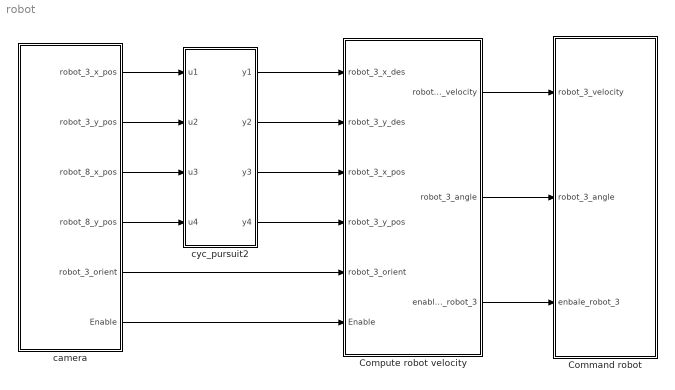
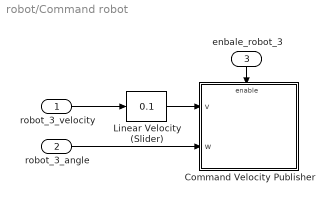
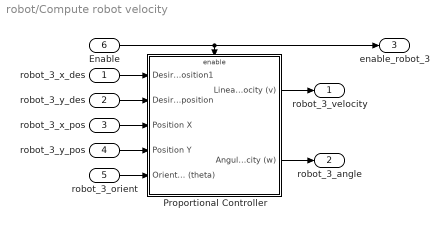
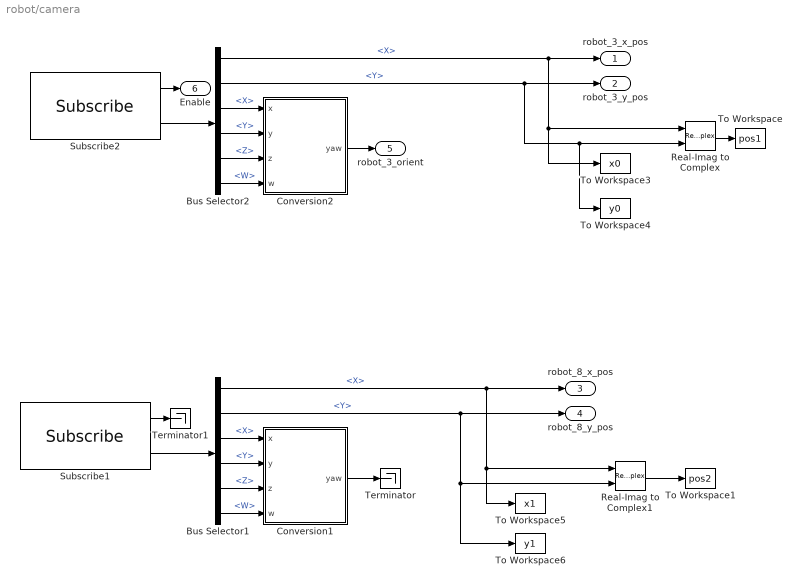
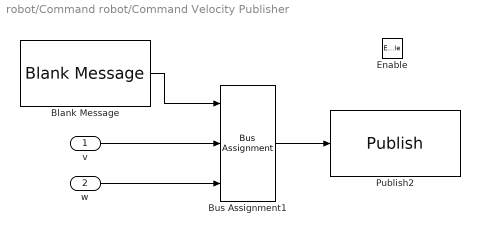
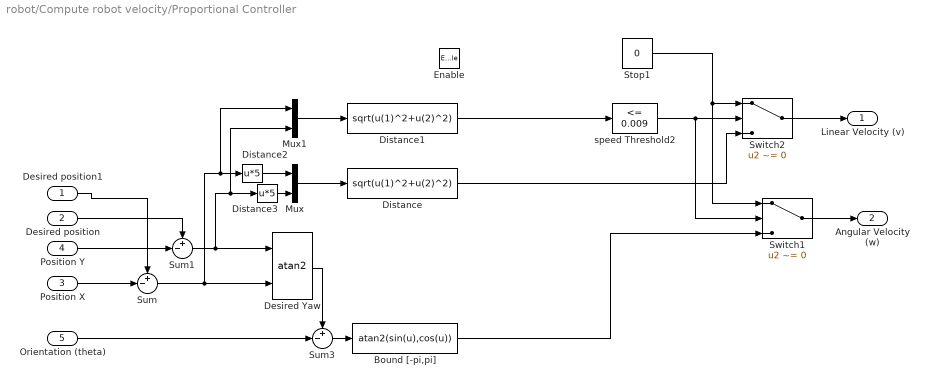
== matlab function robot/cyc_pursuit2 ==
function [y1, y2, y3, y4] = fcn(u1, u2, u3, u4)
%#codegen

y1 = ((1-0.2)*u1+(u3*0.2)+(1.5*0.2));
y2 = ((1-0.2)*u2+(0.2*u4)-(0*0.2));
y3=u1;
y4=u2;

== matlab function robot/camera/Conversion1 ==
function yaw  = quat2eul(x,y,z,w)
%#codegen

% Convert the quaternion to a yaw angle (zyx euler angle)
eul = quat2eul([w,x,y,z]);
yaw = eul(1);

end

== matlab function robot/camera/Conversion2 ==
function yaw  = quat2eul(x,y,z,w)
%#codegen

% Convert the quaternion to a yaw angle (zyx euler angle)
eul = quat2eul([w,x,y,z]);
yaw = eul(1);

end

//
// Academic License - for use in teaching, academic research, and meeting
// course requirements at degree granting institutions only.  Not for
// government, commercial, or other organizational use.
//
// File: robot.cpp
//
// Code generated for Simulink model 'robot'.
//
// Model version                  : 1.18
// Simulink Coder version         : 8.11 (R2016b) 25-Aug-2016
// C/C++ source code generated on : Wed Jan 25 17:09:00 2017
//
// Target selection: ert.tlc
// Embedded hardware selection: Generic->Unspecified (assume 32-bit Generic)
// Code generation objectives: Unspecified
// Validation result: Not run
//
#include "robot.h"
#include "robot_private.h"
#define robot_MessageQueueLen          (105)
#define robot_MessageQueueLen_h        (1)

real_T rt_atan2d_snf(real_T u0, real_T u1)
{
  real_T y;
  int32_T u0_0;
  int32_T u1_0;
  if (rtIsNaN(u0) || rtIsNaN(u1)) {
    y = (rtNaN);
  } else if (rtIsInf(u0) && rtIsInf(u1)) {
    if (u0 > 0.0) {
      u0_0 = 1;
    } else {
      u0_0 = -1;
    }

    if (u1 > 0.0) {
      u1_0 = 1;
    } else {
      u1_0 = -1;
    }

    y = atan2((real_T)u0_0, (real_T)u1_0);
  } else if (u1 == 0.0) {
    if (u0 > 0.0) {
      y = RT_PI / 2.0;
    } else if (u0 < 0.0) {
      y = -(RT_PI / 2.0);
    } else {
      y = 0.0;
    }
  } else {
    y = atan2(u0, u1);
  }

  return y;
}

//
// Output and update for atomic system:
//    '<S3>/Conversion1'
//    '<S3>/Conversion2'
//
void robot_Conversion1(real_T rtu_x, real_T rtu_y, real_T rtu_z, real_T rtu_w,
  B_Conversion1_robot_T *localB)
{
  real_T b_y;
  real_T q_idx_0;
  real_T q_idx_1;
  real_T q_idx_2;

  //  Convert the quaternion to a yaw angle (zyx euler angle)
  // MATLAB Function 'camera/Conversion1': '<S11>:1'
  // '<S11>:1:5' eul = quat2eul([w,x,y,z]);
  b_y = 1.0 / sqrt(((rtu_w * rtu_w + rtu_x * rtu_x) + rtu_y * rtu_y) + rtu_z *
                   rtu_z);
  q_idx_0 = rtu_w * b_y;
  q_idx_1 = rtu_x * b_y;
  q_idx_2 = rtu_y * b_y;
  b_y *= rtu_z;

  // '<S11>:1:6' yaw = eul(1);
  localB->yaw = rt_atan2d_snf((q_idx_1 * q_idx_2 + q_idx_0 * b_y) * 2.0,
    ((q_idx_0 * q_idx_0 + q_idx_1 * q_idx_1) - q_idx_2 * q_idx_2) - b_y * b_y);
}

real_T rt_powd_snf(real_T u0, real_T u1)
{
  real_T y;
  real_T tmp;
  real_T tmp_0;
  if (rtIsNaN(u0) || rtIsNaN(u1)) {
    y = (rtNaN);
  } else {
    tmp = fabs(u0);
    tmp_0 = fabs(u1);
    if (rtIsInf(u1)) {
      if (tmp == 1.0) {
        y = (rtNaN);
      } else if (tmp > 1.0) {
        if (u1 > 0.0) {
          y = (rtInf);
        } else {
          y = 0.0;
        }
      } else if (u1 > 0.0) {
        y = 0.0;
      } else {
        y = (rtInf);
      }
    } else if (tmp_0 == 0.0) {
      y = 1.0;
    } else if (tmp_0 == 1.0) {
      if (u1 > 0.0) {
        y = u0;
      } else {
        y = 1.0 / u0;
      }
    } else if (u1 == 2.0) {
      y = u0 * u0;
    } else if ((u1 == 0.5) && (u0 >= 0.0)) {
      y = sqrt(u0);
    } else if ((u0 < 0.0) && (u1 > floor(u1))) {
      y = (rtNaN);
    } else {
      y = pow(u0, u1);
    }
  }

  return y;
}

// Model step function
void robot_0ModelClass::step()
{
  boolean_T varargout_1;
  boolean_T varargout_1_0;

  // Outputs for Atomic SubSystem: '<S3>/Subscribe2'
  // Start for MATLABSystem: '<S14>/SourceBlock' incorporates:
  //   Inport: '<S16>/In1'
  //   MATLABSystem: '<S14>/SourceBlock'

  varargout_1 = Sub_robot_11.getLatestMessage(&robot_B.varargout_2);

  // Outputs for Enabled SubSystem: '<S14>/Enabled Subsystem' incorporates:
  //   EnablePort: '<S16>/Enable'

  if (varargout_1) {
    robot_B.In1 = robot_B.varargout_2;
  }

  // End of Outputs for SubSystem: '<S14>/Enabled Subsystem'
  // End of Outputs for SubSystem: '<S3>/Subscribe2'

  // Outputs for Atomic SubSystem: '<S3>/Subscribe1'
  // Start for MATLABSystem: '<S13>/SourceBlock' incorporates:
  //   Inport: '<S15>/In1'
  //   MATLABSystem: '<S13>/SourceBlock'

  varargout_1_0 = Sub_robot_10.getLatestMessage(&robot_B.varargout_2);

  // Outputs for Enabled SubSystem: '<S13>/Enabled Subsystem' incorporates:
  //   EnablePort: '<S15>/Enable'

  if (varargout_1_0) {
    robot_B.In1_d = robot_B.varargout_2;
  }

  // End of Start for MATLABSystem: '<S13>/SourceBlock'
  // End of Outputs for SubSystem: '<S13>/Enabled Subsystem'
  // End of Outputs for SubSystem: '<S3>/Subscribe1'

  // MATLAB Function: '<S3>/Conversion2'
  // MATLAB Function 'cyc_pursuit2': '<S4>:1'
  // '<S4>:1:4' y1 = ((1-0.2)*u1+(u3*0.2)+(1.5*0.2));
  // '<S4>:1:5' y2 = ((1-0.2)*u2+(0.2*u4)-(0*0.2));
  // '<S4>:1:6' y3=u1;
  // '<S4>:1:7' y4=u2;
  robot_Conversion1(robot_B.In1.Pose.Pose.Orientation.X,
                    robot_B.In1.Pose.Pose.Orientation.Y,
                    robot_B.In1.Pose.Pose.Orientation.Z,
                    robot_B.In1.Pose.Pose.Orientation.W, &robot_B.sf_Conversion2);

  // Outputs for Enabled SubSystem: '<S1>/Command Velocity Publisher' incorporates:
  //   EnablePort: '<S5>/Enable'

  // Outputs for Enabled SubSystem: '<S2>/Proportional Controller' incorporates:
  //   EnablePort: '<S9>/Enable'

  // Outputs for Atomic SubSystem: '<S3>/Subscribe2'
  // Start for MATLABSystem: '<S14>/SourceBlock' incorporates:
  //   MATLABSystem: '<S14>/SourceBlock'

  if (varargout_1) {
    // Sum: '<S9>/Sum1' incorporates:
    //   MATLAB Function: '<Root>/cyc_pursuit2'
    //   SignalConversion: '<S3>/SigConversion_InsertedFor_Bus Selector1_at_outport_1'
    //   SignalConversion: '<S3>/SigConversion_InsertedFor_Bus Selector2_at_outport_1'

    robot_B.Sum1 = (0.8 * robot_B.In1.Pose.Pose.Position.Y + 0.2 *
                    robot_B.In1_d.Pose.Pose.Position.Y) -
      robot_B.In1.Pose.Pose.Position.Y;

    // Sum: '<S9>/Sum' incorporates:
    //   MATLAB Function: '<Root>/cyc_pursuit2'
    //   SignalConversion: '<S3>/SigConversion_InsertedFor_Bus Selector1_at_outport_0'
    //   SignalConversion: '<S3>/SigConversion_InsertedFor_Bus Selector2_at_outport_0'

    robot_B.Sum = ((0.8 * robot_B.In1.Pose.Pose.Position.X +
                    robot_B.In1_d.Pose.Pose.Position.X * 0.2) +
                   0.30000000000000004) - robot_B.In1.Pose.Pose.Position.X;

    // Fcn: '<S9>/Distance1'
    robot_B.Sum3 = rt_powd_snf(robot_B.Sum, 2.0) + rt_powd_snf(robot_B.Sum1, 2.0);
    if (robot_B.Sum3 < 0.0) {
      robot_B.Sum3 = -sqrt(-robot_B.Sum3);
    } else {
      robot_B.Sum3 = sqrt(robot_B.Sum3);
    }

    // End of Fcn: '<S9>/Distance1'

    // Switch: '<S9>/Switch1' incorporates:
    //   Constant: '<S10>/Constant'
    //   Constant: '<S9>/Stop1'
    //   Fcn: '<S9>/Bound [-pi,pi]'
    //   RelationalOperator: '<S10>/Compare'
    //   Switch: '<S9>/Switch2'

    if (robot_B.Sum3 <= robot_P.speedThreshold2_const) {
      robot_B.Switch1 = robot_P.Stop1_Value;
      robot_B.Sum1 = robot_P.Stop1_Value;
    } else {
      // Sum: '<S9>/Sum3' incorporates:
      //   Trigonometry: '<S9>/Desired Yaw'

      robot_B.Sum3 = rt_atan2d_snf(robot_B.Sum1, robot_B.Sum) -
        robot_B.sf_Conversion2.yaw;
      robot_B.Switch1 = rt_atan2d_snf(sin(robot_B.Sum3), cos(robot_B.Sum3));

      // Fcn: '<S9>/Distance3' incorporates:
      //   Fcn: '<S9>/Bound [-pi,pi]'

      robot_B.Sum1 *= 5.0;

      // Fcn: '<S9>/Distance2'
      robot_B.Sum *= 5.0;

      // Fcn: '<S9>/Distance'
      robot_B.Sum3 = rt_powd_snf(robot_B.Sum, 2.0) + rt_powd_snf(robot_B.Sum1,
        2.0);
      if (robot_B.Sum3 < 0.0) {
        robot_B.Sum1 = -sqrt(-robot_B.Sum3);
      } else {
        robot_B.Sum1 = sqrt(robot_B.Sum3);
      }

      // End of Fcn: '<S9>/Distance'
    }

    // End of Switch: '<S9>/Switch1'

    // BusAssignment: '<S5>/Bus Assignment1' incorporates:
    //   Constant: '<S7>/Constant'
    //   Gain: '<S6>/Slider Gain'

    robot_B.BusAssignment1 = robot_P.Constant_Value_p;
    robot_B.BusAssignment1.Linear.X = robot_P.LinearVelocitySlider_gain *
      robot_B.Sum1;
    robot_B.BusAssignment1.Angular.Z = robot_B.Switch1;

    // Outputs for Atomic SubSystem: '<S5>/Publish2'
    // Start for MATLABSystem: '<S8>/SinkBlock' incorporates:
    //   MATLABSystem: '<S8>/SinkBlock'

    Pub_robot_75.publish(&robot_B.BusAssignment1);

    // End of Outputs for SubSystem: '<S5>/Publish2'
  }

  // End of Outputs for SubSystem: '<S3>/Subscribe2'
  // End of Outputs for SubSystem: '<S2>/Proportional Controller'
  // End of Outputs for SubSystem: '<S1>/Command Velocity Publisher'

  // MATLAB Function: '<S3>/Conversion1'
  robot_Conversion1(robot_B.In1_d.Pose.Pose.Orientation.X,
                    robot_B.In1_d.Pose.Pose.Orientation.Y,
                    robot_B.In1_d.Pose.Pose.Orientation.Z,
                    robot_B.In1_d.Pose.Pose.Orientation.W,
                    &robot_B.sf_Conversion1);
}
